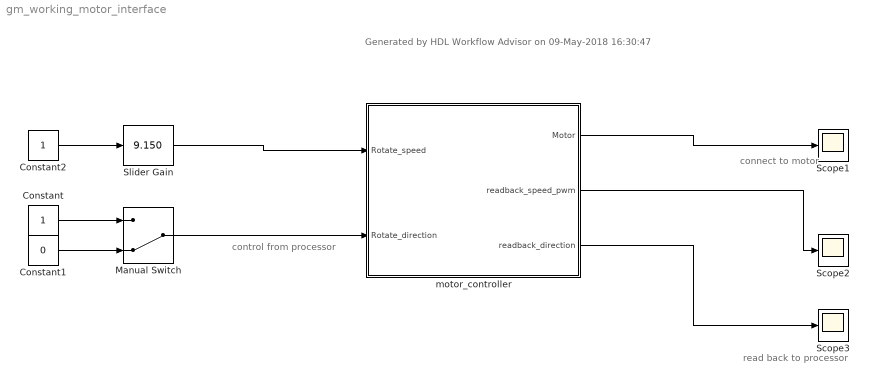
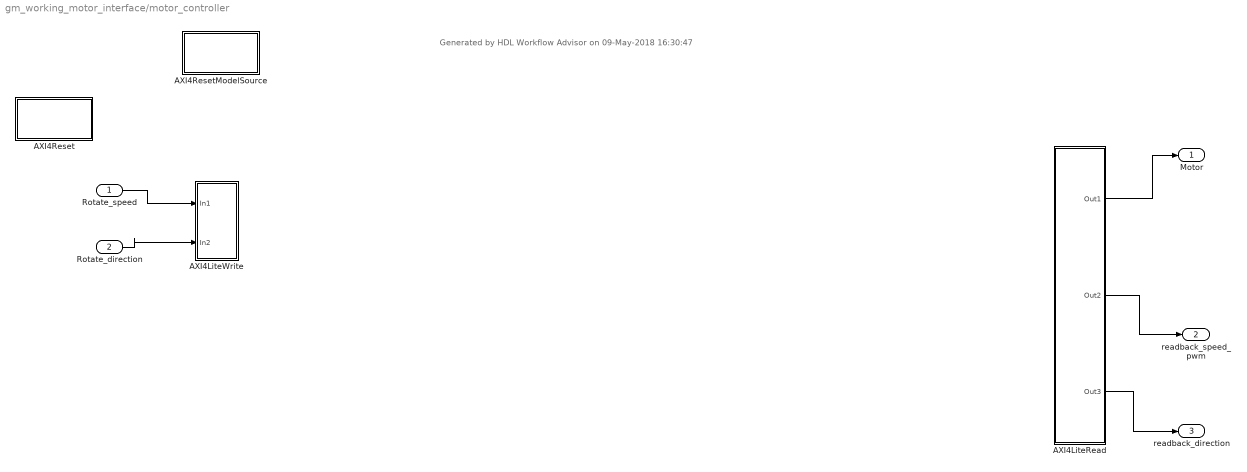
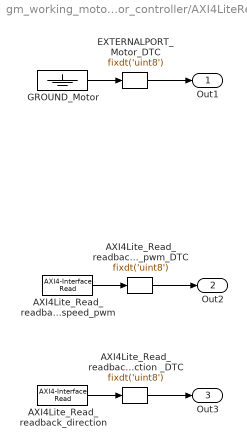
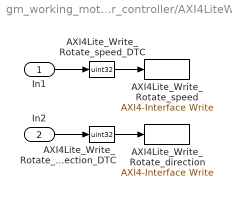
== system gm_working_motor_interface/motor_controller/AXI4Reset ==

== system gm_working_motor_interface/motor_controller/AXI4ResetModelSource ==

/*
 * Academic License - for use in teaching, academic research, and meeting
 * course requirements at degree granting institutions only.  Not for
 * government, commercial, or other organizational use.
 *
 * File: gm_working_motor_interface.c
 *
 * Code generated for Simulink model 'gm_working_motor_interface'.
 *
 * Model version                  : 1.60
 * Simulink Coder version         : 8.12 (R2017a) 16-Feb-2017
 * C/C++ source code generated on : Wed May 09 16:54:44 2018
 *
 * Target selection: ert.tlc
 * Embedded hardware selection: ARM Compatible->ARM Cortex
 * Code generation objectives: Unspecified
 * Validation result: Not run
 */

#include "gm_working_motor_interface.h"
#include "gm_working_motor_interface_private.h"
#include "gm_working_motor_interface_dt.h"
#define gm_working_m_RegisterOffset_f3y (256U)
#define gm_working_mo_RegisterOffset_f3 (260U)
#define gm_working_mot_RegisterOffset_f (264U)
#define gm_working_motor_RegisterOffset (268U)

/* user code (top of source file) */
/* System '<Root>/motor_controller' */
#include "axi_lct.h"

/* Block signals (auto storage) */
B_gm_working_motor_interface_T gm_working_motor_interface_B;

/* Block states (auto storage) */
DW_gm_working_motor_interface_T gm_working_motor_interface_DW;

/* Real-time model */
RT_MODEL_gm_working_motor_int_T gm_working_motor_interface_M_;
RT_MODEL_gm_working_motor_int_T *const gm_working_motor_interface_M =
  &gm_working_motor_interface_M_;

/* Model step function */
void gm_working_motor_interface_step(void)
{
  AXI4_struct * p_state;
  uint32_T rtb_AXI4Lite_Write_Rotate_speed;
  uint8_T rtb_SliderGain;
  boolean_T rtb_ManualSwitch;
  int32_T tmp;

  /* Gain: '<S1>/Slider Gain' incorporates:
   *  Constant: '<Root>/Constant2'
   */
  tmp = (int32_T)((uint32_T)gm_working_motor_interface_P.SliderGain_gain *
                  gm_working_motor_interface_P.Constant2_Value);
  if ((uint32_T)tmp > 15U) {
    tmp = 15;
  }

  rtb_SliderGain = (uint8_T)tmp;

  /* End of Gain: '<S1>/Slider Gain' */

  /* ManualSwitch: '<Root>/Manual Switch' incorporates:
   *  Constant: '<Root>/Constant'
   *  Constant: '<Root>/Constant1'
   */
  if (gm_working_motor_interface_P.ManualSwitch_CurrentSetting == 1) {
    rtb_ManualSwitch = gm_working_motor_interface_P.Constant_Value;
  } else {
    rtb_ManualSwitch = gm_working_motor_interface_P.Constant1_Value;
  }

  /* End of ManualSwitch: '<Root>/Manual Switch' */

  /* Outputs for Atomic SubSystem: '<Root>/motor_controller' */

  /* DataTypeConversion: '<S4>/AXI4Lite_Write_Rotate_speed_DTC' */
  rtb_AXI4Lite_Write_Rotate_speed = rtb_SliderGain;

  /* Start for MATLABSystem: '<S8>/AXI4-Interface Write' incorporates:
   *  MATLABSystem: '<S8>/AXI4-Interface Write'
   */
  p_state = (AXI4_struct *)(gm_working_motor_interface_DW.obj_k.DeviceState);
  AXI4LITE_WRITE(p_state, &rtb_AXI4Lite_Write_Rotate_speed,
                 gm_working_m_RegisterOffset_f3y, 4U);

  /* DataTypeConversion: '<S4>/AXI4Lite_Write_Rotate_direction_DTC' */
  rtb_AXI4Lite_Write_Rotate_speed = rtb_ManualSwitch;

  /* Start for MATLABSystem: '<S7>/AXI4-Interface Write' incorporates:
   *  MATLABSystem: '<S7>/AXI4-Interface Write'
   */
  p_state = (AXI4_struct *)(gm_working_motor_interface_DW.obj_p.DeviceState);
  AXI4LITE_WRITE(p_state, &rtb_AXI4Lite_Write_Rotate_speed,
                 gm_working_mo_RegisterOffset_f3, 4U);

  /* Start for MATLABSystem: '<S6>/AXI4-Interface Read' incorporates:
   *  MATLABSystem: '<S6>/AXI4-Interface Read'
   */
  p_state = (AXI4_struct *)(gm_working_motor_interface_DW.obj.DeviceState);
  AXI4LITE_READ(p_state, &rtb_AXI4Lite_Write_Rotate_speed,
                gm_working_mot_RegisterOffset_f, 4U);

  /* DataTypeConversion: '<S3>/AXI4Lite_Read_readback_speed_pwm_DTC' incorporates:
   *  MATLABSystem: '<S6>/AXI4-Interface Read'
   */
  gm_working_motor_interface_B.AXI4Lite_Read_readback_speed_pw = (uint8_T)
    rtb_AXI4Lite_Write_Rotate_speed;

  /* Start for MATLABSystem: '<S5>/AXI4-Interface Read' incorporates:
   *  MATLABSystem: '<S5>/AXI4-Interface Read'
   */
  p_state = (AXI4_struct *)(gm_working_motor_interface_DW.obj_o.DeviceState);
  AXI4LITE_READ(p_state, &rtb_AXI4Lite_Write_Rotate_speed,
                gm_working_motor_RegisterOffset, 4U);

  /* DataTypeConversion: '<S3>/AXI4Lite_Read_readback_direction _DTC' incorporates:
   *  MATLABSystem: '<S5>/AXI4-Interface Read'
   */
  gm_working_motor_interface_B.AXI4Lite_Read_readback_directio = (uint8_T)
    rtb_AXI4Lite_Write_Rotate_speed;

  /* DataTypeConversion: '<S3>/EXTERNALPORT_Motor_DTC' */
  gm_working_motor_interface_B.EXTERNALPORT_Motor_DTC = 0U;

  /* End of Outputs for SubSystem: '<Root>/motor_controller' */

  /* External mode */
  rtExtModeUploadCheckTrigger(1);

  {                                    /* Sample time: [0.1s, 0.0s] */
    rtExtModeUpload(0, gm_working_motor_interface_M->Timing.taskTime0);
  }

  /* signal main to stop simulation */
  {                                    /* Sample time: [0.1s, 0.0s] */
    if ((rtmGetTFinal(gm_working_motor_interface_M)!=-1) &&
        !((rtmGetTFinal(gm_working_motor_interface_M)-
           gm_working_motor_interface_M->Timing.taskTime0) >
          gm_working_motor_interface_M->Timing.taskTime0 * (DBL_EPSILON))) {
      rtmSetErrorStatus(gm_working_motor_interface_M, "Simulation finished");
    }

    if (rtmGetStopRequested(gm_working_motor_interface_M)) {
      rtmSetErrorStatus(gm_working_motor_interface_M, "Simulation finished");
    }
  }

  /* Update absolute time for base rate */
  /* The "clockTick0" counts the number of times the code of this task has
   * been executed. The absolute time is the multiplication of "clockTick0"
   * and "Timing.stepSize0". Size of "clockTick0" ensures timer will not
   * overflow during the application lifespan selected.
   */
  gm_working_motor_interface_M->Timing.taskTime0 =
    (++gm_working_motor_interface_M->Timing.clockTick0) *
    gm_working_motor_interface_M->Timing.stepSize0;
}
